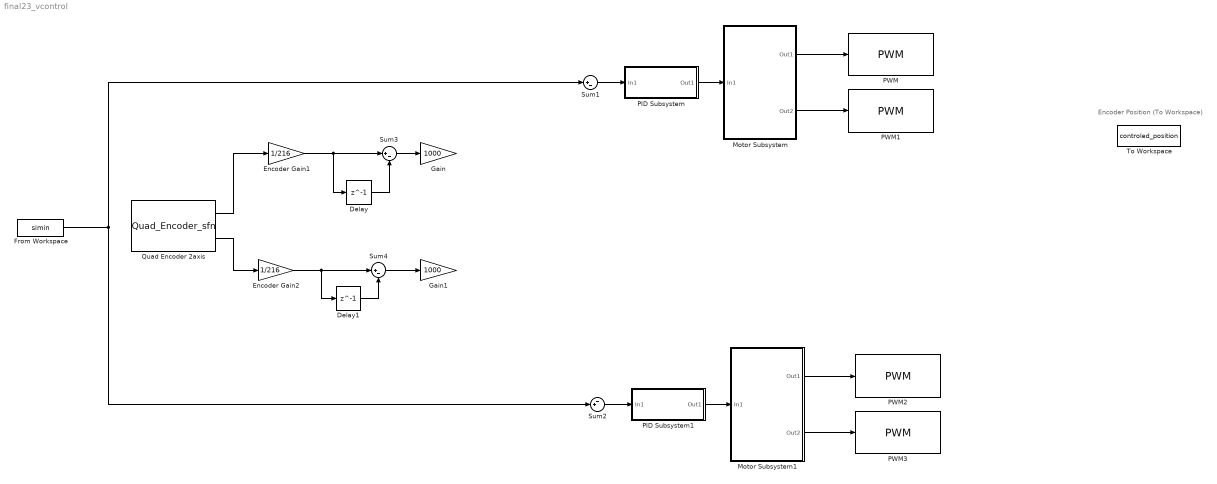
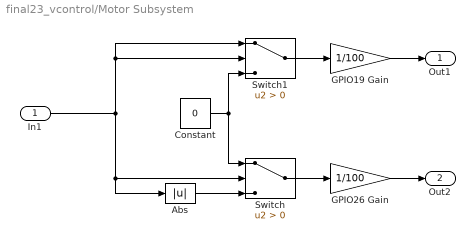
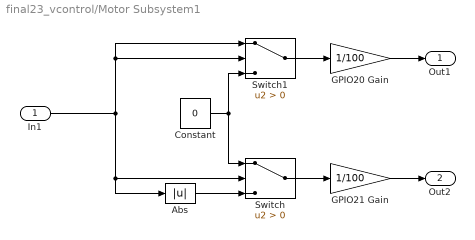
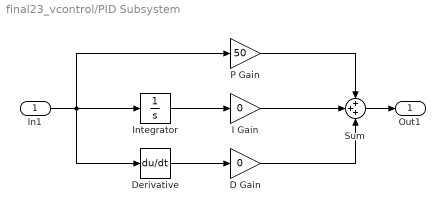
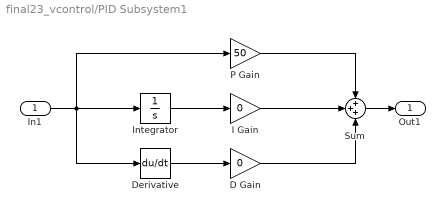
/*
 * final23_vcontrol.c
 *
 * Academic License - for use in teaching, academic research, and meeting
 * course requirements at degree granting institutions only.  Not for
 * government, commercial, or other organizational use.
 *
 * Code generation for model "final23_vcontrol".
 *
 * Model version              : 1.17
 * Simulink Coder version : 9.5 (R2021a) 14-Nov-2020
 * C source code generated on : Mon Dec  4 17:46:37 2023
 *
 * Target selection: ert.tlc
 * Note: GRT includes extra infrastructure and instrumentation for prototyping
 * Embedded hardware selection: ARM Compatible->ARM Cortex
 * Code generation objectives: Unspecified
 * Validation result: Not run
 */

#include "final23_vcontrol.h"
#include "final23_vcontrol_private.h"

/* Block signals (default storage) */
B_final23_vcontrol_T final23_vcontrol_B;

/* Continuous states */
X_final23_vcontrol_T final23_vcontrol_X;

/* Block states (default storage) */
DW_final23_vcontrol_T final23_vcontrol_DW;

/* Real-time model */
static RT_MODEL_final23_vcontrol_T final23_vcontrol_M_;
RT_MODEL_final23_vcontrol_T *const final23_vcontrol_M = &final23_vcontrol_M_;
real_T sMultiWord2Double(const uint64_T u1[], int32_T n1, int32_T e1)
{
  real_T y;
  uint64_T cb;
  uint64_T u1i;
  int32_T exp_0;
  int32_T i;
  y = 0.0;
  exp_0 = e1;
  if ((u1[n1 - 1] & 9223372036854775808ULL) != 0ULL) {
    cb = 1ULL;
    for (i = 0; i < n1; i++) {
      u1i = ~u1[i];
      cb += u1i;
      y -= ldexp((real_T)cb, exp_0);
      cb = (uint64_T)(cb < u1i);
      exp_0 += 64;
    }
  } else {
    for (i = 0; i < n1; i++) {
      y += ldexp((real_T)u1[i], exp_0);
      exp_0 += 64;
    }
  }

  return y;
}

void sMultiWordMul(const uint64_T u1[], int32_T n1, const uint64_T u2[], int32_T
                   n2, uint64_T y[], int32_T n)
{
  uint64_T a0;
  uint64_T a1;
  uint64_T b1;
  uint64_T cb;
  uint64_T cb1;
  uint64_T cb2;
  uint64_T u1i;
  uint64_T w01;
  uint64_T w10;
  uint64_T yk;
  int32_T i;
  int32_T j;
  int32_T k;
  int32_T ni;
  boolean_T isNegative1;
  boolean_T isNegative2;
  isNegative1 = ((u1[n1 - 1] & 9223372036854775808ULL) != 0ULL);
  isNegative2 = ((u2[n2 - 1] & 9223372036854775808ULL) != 0ULL);
  cb1 = 1ULL;

  /* Initialize output to zero */
  for (k = 0; k < n; k++) {
    y[k] = 0ULL;
  }

  for (i = 0; i < n1; i++) {
    cb = 0ULL;
    u1i = u1[i];
    if (isNegative1) {
      u1i = ~u1i + cb1;
      cb1 = (uint64_T)(u1i < cb1);
    }

    a1 = u1i >> 32U;
    a0 = u1i & 4294967295ULL;
    cb2 = 1ULL;
    ni = n - i;
    ni = n2 <= ni ? n2 : ni;
    k = i;
    for (j = 0; j < ni; j++) {
      u1i = u2[j];
      if (isNegative2) {
        u1i = ~u1i + cb2;
        cb2 = (uint64_T)(u1i < cb2);
      }

      b1 = u1i >> 32U;
      u1i &= 4294967295ULL;
      w10 = a1 * u1i;
      w01 = a0 * b1;
      yk = y[k] + cb;
      cb = (uint64_T)(yk < cb);
      u1i *= a0;
      yk += u1i;
      cb += (yk < u1i);
      u1i = w10 << 32U;
      yk += u1i;
      cb += (yk < u1i);
      u1i = w01 << 32U;
      yk += u1i;
      cb += (yk < u1i);
      y[k] = yk;
      cb += w10 >> 32U;
      cb += w01 >> 32U;
      cb += a1 * b1;
      k++;
    }

    if (k < n) {
      y[k] = cb;
    }
  }

  /* Apply sign */
  if (isNegative1 != isNegative2) {
    cb = 1ULL;
    for (k = 0; k < n; k++) {
      yk = ~y[k] + cb;
      y[k] = yk;
      cb = (uint64_T)(yk < cb);
    }
  }
}

/*
 * This function updates continuous states using the ODE3 fixed-step
 * solver algorithm
 */
static void rt_ertODEUpdateContinuousStates(RTWSolverInfo *si )
{
  /* Solver Matrices */
  static const real_T rt_ODE3_A[3] = {
    1.0/2.0, 3.0/4.0, 1.0
  };

  static const real_T rt_ODE3_B[3][3] = {
    { 1.0/2.0, 0.0, 0.0 },

    { 0.0, 3.0/4.0, 0.0 },

    { 2.0/9.0, 1.0/3.0, 4.0/9.0 }
  };

  time_T t = rtsiGetT(si);
  time_T tnew = rtsiGetSolverStopTime(si);
  time_T h = rtsiGetStepSize(si);
  real_T *x = rtsiGetContStates(si);
  ODE3_IntgData *id = (ODE3_IntgData *)rtsiGetSolverData(si);
  real_T *y = id->y;
  real_T *f0 = id->f[0];
  real_T *f1 = id->f[1];
  real_T *f2 = id->f[2];
  real_T hB[3];
  int_T i;
  int_T nXc = 2;
  rtsiSetSimTimeStep(si,MINOR_TIME_STEP);

  /* Save the state values at time t in y, we'll use x as ynew. */
  (void) memcpy(y, x,
                (uint_T)nXc*sizeof(real_T));

  /* Assumes that rtsiSetT and ModelOutputs are up-to-date */
  /* f0 = f(t,y) */
  rtsiSetdX(si, f0);
  final23_vcontrol_derivatives();

  /* f(:,2) = feval(odefile, t + hA(1), y + f*hB(:,1), args(:)(*)); */
  hB[0] = h * rt_ODE3_B[0][0];
  for (i = 0; i < nXc; i++) {
    x[i] = y[i] + (f0[i]*hB[0]);
  }

  rtsiSetT(si, t + h*rt_ODE3_A[0]);
  rtsiSetdX(si, f1);
  final23_vcontrol_step();
  final23_vcontrol_derivatives();

  /* f(:,3) = feval(odefile, t + hA(2), y + f*hB(:,2), args(:)(*)); */
  for (i = 0; i <= 1; i++) {
    hB[i] = h * rt_ODE3_B[1][i];
  }

  for (i = 0; i < nXc; i++) {
    x[i] = y[i] + (f0[i]*hB[0] + f1[i]*hB[1]);
  }

  rtsiSetT(si, t + h*rt_ODE3_A[1]);
  rtsiSetdX(si, f2);
  final23_vcontrol_step();
  final23_vcontrol_derivatives();

  /* tnew = t + hA(3);
     ynew = y + f*hB(:,3); */
  for (i = 0; i <= 2; i++) {
    hB[i] = h * rt_ODE3_B[2][i];
  }

  for (i = 0; i < nXc; i++) {
    x[i] = y[i] + (f0[i]*hB[0] + f1[i]*hB[1] + f2[i]*hB[2]);
  }

  rtsiSetT(si, tnew);
  rtsiSetSimTimeStep(si,MAJOR_TIME_STEP);
}

/*
 * System initialize for atomic system:
 *    synthesized block
 *    synthesized block
 */
void final23_vcon_MovingAverage_Init(DW_MovingAverage_final23_vcon_T *localDW)
{
  g_dsp_private_SlidingWindowAv_T *obj;
  int32_T i;

  /* InitializeConditions for MATLABSystem: '<S3>/Moving Average' */
  obj = localDW->obj.pStatistic;
  if (obj->isInitialized == 1) {
    obj->pCumSum = 0.0;
    for (i = 0; i < 19; i++) {
      obj->pCumSumRev[i] = 0.0;
    }

    obj->pCumRevIndex = 1.0;
  }

  /* End of InitializeConditions for MATLABSystem: '<S3>/Moving Average' */
}

/*
 * Start for atomic system:
 *    synthesized block
 *    synthesized block
 */
void final23_vco_MovingAverage_Start(DW_MovingAverage_final23_vcon_T *localDW)
{
  /* Start for MATLABSystem: '<S3>/Moving Average' */
  localDW->obj.matlabCodegenIsDeleted = true;
  localDW->obj.isInitialized = 0;
  localDW->obj.NumChannels = -1;
  localDW->obj.matlabCodegenIsDeleted = false;
  localDW->objisempty = true;
  localDW->obj.isSetupComplete = false;
  localDW->obj.isInitialized = 1;
  localDW->obj.NumChannels = 1;
  localDW->obj._pobj0.isInitialized = 0;
  localDW->obj.pStatistic = &localDW->obj._pobj0;
  localDW->obj.isSetupComplete = true;
  localDW->obj.TunablePropsChanged = false;
}

/*
 * Output and update for atomic system:
 *    synthesized block
 *    synthesized block
 */
void final23_vcontrol_MovingAverage(real_T rtu_0,
  B_MovingAverage_final23_vcont_T *localB, DW_MovingAverage_final23_vcon_T
  *localDW)
{
  g_dsp_private_SlidingWindowAv_T *obj;
  real_T csum;
  real_T cumRevIndex;
  real_T z;
  int32_T i;

  /* MATLABSystem: '<S3>/Moving Average' */
  if (localDW->obj.TunablePropsChanged) {
    localDW->obj.TunablePropsChanged = false;
  }

  obj = localDW->obj.pStatistic;
  if (obj->isInitialized != 1) {
    obj->isSetupComplete = false;
    obj->isInitialized = 1;
    obj->pCumSum = 0.0;
    for (i = 0; i < 19; i++) {
      obj->pCumSumRev[i] = 0.0;
    }

    obj->pCumRevIndex = 1.0;
    obj->isSetupComplete = true;
    obj->pCumSum = 0.0;
    for (i = 0; i < 19; i++) {
      obj->pCumSumRev[i] = 0.0;
    }

    obj->pCumRevIndex = 1.0;
  }

  cumRevIndex = obj->pCumRevIndex;
  csum = obj->pCumSum;
  for (i = 0; i < 19; i++) {
    localB->csumrev[i] = obj->pCumSumRev[i];
  }

  csum += rtu_0;
  z = localB->csumrev[(int32_T)cumRevIndex - 1] + csum;
  localB->csumrev[(int32_T)cumRevIndex - 1] = rtu_0;
  if (cumRevIndex != 19.0) {
    cumRevIndex++;
  } else {
    cumRevIndex = 1.0;
    csum = 0.0;
    for (i = 17; i >= 0; i--) {
      localB->csumrev[i] += localB->csumrev[i + 1];
    }
  }

  obj->pCumSum = csum;
  for (i = 0; i < 19; i++) {
    obj->pCumSumRev[i] = localB->csumrev[i];
  }

  obj->pCumRevIndex = cumRevIndex;

  /* MATLABSystem: '<S3>/Moving Average' */
  localB->MovingAverage = z / 20.0;
}

/*
 * Termination for atomic system:
 *    synthesized block
 *    synthesized block
 */
void final23_vcon_MovingAverage_Term(DW_MovingAverage_final23_vcon_T *localDW)
{
  g_dsp_private_SlidingWindowAv_T *obj;

  /* Terminate for MATLABSystem: '<S3>/Moving Average' */
  if (!localDW->obj.matlabCodegenIsDeleted) {
    localDW->obj.matlabCodegenIsDeleted = true;
    if ((localDW->obj.isInitialized == 1) && localDW->obj.isSetupComplete) {
      obj = localDW->obj.pStatistic;
      if (obj->isInitialized == 1) {
        obj->isInitialized = 2;
      }

      localDW->obj.NumChannels = -1;
    }
  }

  /* End of Terminate for MATLABSystem: '<S3>/Moving Average' */
}

/* Model step function */
void final23_vcontrol_step(void)
{
  /* local block i/o variables */
  real_T rtb_CastToDouble;
  real_T rtb_CastToDouble1;
  if (rtmIsMajorTimeStep(final23_vcontrol_M)) {
    /* set solver stop time */
    if (!(final23_vcontrol_M->Timing.clockTick0+1)) {
      rtsiSetSolverStopTime(&final23_vcontrol_M->solverInfo,
                            ((final23_vcontrol_M->Timing.clockTickH0 + 1) *
        final23_vcontrol_M->Timing.stepSize0 * 4294967296.0));
    } else {
      rtsiSetSolverStopTime(&final23_vcontrol_M->solverInfo,
                            ((final23_vcontrol_M->Timing.clockTick0 + 1) *
        final23_vcontrol_M->Timing.stepSize0 +
        final23_vcontrol_M->Timing.clockTickH0 *
        final23_vcontrol_M->Timing.stepSize0 * 4294967296.0));
    }
  }                                    /* end MajorTimeStep */

  /* Update absolute time of base rate at minor time step */
  if (rtmIsMinorTimeStep(final23_vcontrol_M)) {
    final23_vcontrol_M->Timing.t[0] = rtsiGetT(&final23_vcontrol_M->solverInfo);
  }

  {
    real_T *lastU;
    if (rtmIsMajorTimeStep(final23_vcontrol_M)) {
      /* FromWorkspace: '<Root>/From Workspace' */
      {
        real_T *pDataValues = (real_T *)
          final23_vcontrol_DW.FromWorkspace_PWORK.DataPtr;
        real_T *pTimeValues = (real_T *)
          final23_vcontrol_DW.FromWorkspace_PWORK.TimePtr;
        int_T currTimeIndex = final23_vcontrol_DW.FromWorkspace_IWORK.PrevIndex;
        real_T t = (((final23_vcontrol_M->Timing.clockTick1+
                      final23_vcontrol_M->Timing.clockTickH1* 4294967296.0)) *
                    0.001);

        /* Get index */
        if (t <= pTimeValues[0]) {
          currTimeIndex = 0;
        } else if (t >= pTimeValues[10000]) {
          currTimeIndex = 9999;
        } else {
          if (t < pTimeValues[currTimeIndex]) {
            while (t < pTimeValues[currTimeIndex]) {
              currTimeIndex--;
            }
          } else {
            while (t >= pTimeValues[currTimeIndex + 1]) {
              currTimeIndex++;
            }
          }
        }

        final23_vcontrol_DW.FromWorkspace_IWORK.PrevIndex = currTimeIndex;

        /* Post output */
        {
          real_T t1 = pTimeValues[currTimeIndex];
          real_T t2 = pTimeValues[currTimeIndex + 1];
          if (t1 == t2) {
            if (t < t1) {
              final23_vcontrol_B.FromWorkspace = pDataValues[currTimeIndex];
            } else {
              final23_vcontrol_B.FromWorkspace = pDataValues[currTimeIndex + 1];
            }
          } else {
            real_T f1 = (t2 - t) / (t2 - t1);
            real_T f2 = 1.0 - f1;
            real_T d1;
            real_T d2;
            int_T TimeIndex = currTimeIndex;
            d1 = pDataValues[TimeIndex];
            d2 = pDataValues[TimeIndex + 1];
            final23_vcontrol_B.FromWorkspace = (real_T) rtInterpolate(d1, d2, f1,
              f2);
            pDataValues += 10001;
          }
        }
      }
    }

    /* S-Function (Quad_Encoder_sfn): '<Root>/Quad Encoder 2axis' */
    Quad_Encoder_sfn_Outputs_wrapper(&final23_vcontrol_B.QuadEncoder2axis_o1,
      &final23_vcontrol_B.QuadEncoder2axis_o2,
      &final23_vcontrol_DW.QuadEncoder2axis_DSTATE,
      &final23_vcontrol_P.QuadEncoder2axis_P1, 1,
      &final23_vcontrol_P.QuadEncoder2axis_P2, 1,
      &final23_vcontrol_P.QuadEncoder2axis_P3, 1,
      &final23_vcontrol_P.QuadEncoder2axis_P4, 1,
      &final23_vcontrol_P.QuadEncoder2axis_P5, 1,
      &final23_vcontrol_P.QuadEncoder2axis_P6, 1);

    /* Gain: '<S3>/Encoder Gain1' */
    final23_vcontrol_B.EncoderGain1 = (int64_T)
      final23_vcontrol_P.EncoderGain1_Gain *
      final23_vcontrol_B.QuadEncoder2axis_o1;
    if (rtmIsMajorTimeStep(final23_vcontrol_M)) {
      /* Delay: '<S3>/Delay' */
      final23_vcontrol_B.Delay = final23_vcontrol_DW.Delay_DSTATE;
    }

    /* Gain: '<S3>/Gain' incorporates:
     *  Delay: '<S3>/Delay'
     *  Gain: '<S3>/Encoder Gain1'
     *  Sum: '<S3>/Sum3'
     */
    final23_vcontrol_B.u = (uint64_T)final23_vcontrol_P.Gain_Gain;
    final23_vcontrol_B.u1 = (uint64_T)(final23_vcontrol_B.EncoderGain1 -
      final23_vcontrol_B.Delay);
    sMultiWordMul(&final23_vcontrol_B.u, 1, &final23_vcontrol_B.u1, 1,
                  &final23_vcontrol_B.r.chunks[0U], 2);

    /* DataTypeConversion: '<S3>/Cast To Double' */
    rtb_CastToDouble = sMultiWord2Double(&final23_vcontrol_B.r.chunks[0U], 2, 0)
      * 4.0389678347315804E-28;
    final23_vcontrol_MovingAverage(rtb_CastToDouble,
      &final23_vcontrol_B.MovingAverage, &final23_vcontrol_DW.MovingAverage);

    /* Sum: '<Root>/Sum1' */
    final23_vcontrol_B.Sum1 = final23_vcontrol_B.FromWorkspace -
      final23_vcontrol_B.MovingAverage.MovingAverage;

    /* Derivative: '<S5>/Derivative' incorporates:
     *  Derivative: '<S6>/Derivative'
     */
    final23_vcontrol_B.Sum_d = final23_vcontrol_M->Timing.t[0];
    if ((final23_vcontrol_DW.TimeStampA >= final23_vcontrol_B.Sum_d) &&
        (final23_vcontrol_DW.TimeStampB >= final23_vcontrol_B.Sum_d)) {
      final23_vcontrol_B.Switch = 0.0;
    } else {
      final23_vcontrol_B.Switch = final23_vcontrol_DW.TimeStampA;
      lastU = &final23_vcontrol_DW.LastUAtTimeA;
      if (final23_vcontrol_DW.TimeStampA < final23_vcontrol_DW.TimeStampB) {
        if (final23_vcontrol_DW.TimeStampB < final23_vcontrol_B.Sum_d) {
          final23_vcontrol_B.Switch = final23_vcontrol_DW.TimeStampB;
          lastU = &final23_vcontrol_DW.LastUAtTimeB;
        }
      } else if (final23_vcontrol_DW.TimeStampA >= final23_vcontrol_B.Sum_d) {
        final23_vcontrol_B.Switch = final23_vcontrol_DW.TimeStampB;
        lastU = &final23_vcontrol_DW.LastUAtTimeB;
      }

      final23_vcontrol_B.Switch = (final23_vcontrol_B.Sum1 - *lastU) /
        (final23_vcontrol_B.Sum_d - final23_vcontrol_B.Switch);
    }

    /* End of Derivative: '<S5>/Derivative' */

    /* Sum: '<S5>/Sum' incorporates:
     *  Gain: '<S5>/D Gain'
     *  Gain: '<S5>/I Gain'
     *  Gain: '<S5>/P Gain'
     *  Integrator: '<S5>/Integrator'
     */
    final23_vcontrol_B.Sum = (final23_vcontrol_P.PGain_Gain *
      final23_vcontrol_B.Sum1 + final23_vcontrol_P.IGain_Gain *
      final23_vcontrol_X.Integrator_CSTATE) + final23_vcontrol_P.DGain_Gain *
      final23_vcontrol_B.Switch;

    /* Switch: '<S1>/Switch1' incorporates:
     *  Constant: '<S1>/Constant'
     */
    if (final23_vcontrol_B.Sum > final23_vcontrol_P.Switch1_Threshold) {
      final23_vcontrol_B.Switch = final23_vcontrol_B.Sum;
    } else {
      final23_vcontrol_B.Switch = final23_vcontrol_P.Constant_Value;
    }

    /* End of Switch: '<S1>/Switch1' */

    /* Gain: '<S1>/GPIO19 Gain' */
    final23_vcontrol_B.Switch *= final23_vcontrol_P.GPIO19Gain_Gain;

    /* MATLABSystem: '<Root>/PWM' */
    if (!(final23_vcontrol_B.Switch < 1.0)) {
      final23_vcontrol_B.Switch = 1.0;
    }

    if (!(final23_vcontrol_B.Switch > 0.0)) {
      final23_vcontrol_B.Switch = 0.0;
    }

    EXT_PWMBlock_setDutyCycle(final23_vcontrol_DW.obj_g.PinNumber,
      final23_vcontrol_B.Switch);

    /* End of MATLABSystem: '<Root>/PWM' */

    /* Switch: '<S1>/Switch' incorporates:
     *  Abs: '<S1>/Abs'
     *  Constant: '<S1>/Constant'
     */
    if (final23_vcontrol_B.Sum > final23_vcontrol_P.Switch_Threshold) {
      final23_vcontrol_B.Sum = final23_vcontrol_P.Constant_Value;
    } else {
      final23_vcontrol_B.Sum = fabs(final23_vcontrol_B.Sum);
    }

    /* End of Switch: '<S1>/Switch' */

    /* Gain: '<S1>/GPIO26 Gain' */
    final23_vcontrol_B.Switch = final23_vcontrol_P.GPIO26Gain_Gain *
      final23_vcontrol_B.Sum;

    /* MATLABSystem: '<Root>/PWM1' */
    if (!(final23_vcontrol_B.Switch < 1.0)) {
      final23_vcontrol_B.Switch = 1.0;
    }

    if (!(final23_vcontrol_B.Switch > 0.0)) {
      final23_vcontrol_B.Switch = 0.0;
    }

    EXT_PWMBlock_setDutyCycle(final23_vcontrol_DW.obj_e.PinNumber,
      final23_vcontrol_B.Switch);

    /* End of MATLABSystem: '<Root>/PWM1' */
    if (rtmIsMajorTimeStep(final23_vcontrol_M)) {
      /* Delay: '<S4>/Delay1' */
      final23_vcontrol_B.Delay1 = final23_vcontrol_DW.Delay1_DSTATE;
    }

    /* Gain: '<S4>/Encoder Gain2' */
    final23_vcontrol_B.EncoderGain2 = (int64_T)
      final23_vcontrol_P.EncoderGain2_Gain *
      final23_vcontrol_B.QuadEncoder2axis_o2;

    /* Gain: '<S4>/Gain1' incorporates:
     *  Delay: '<S4>/Delay1'
     *  Gain: '<S4>/Encoder Gain2'
     *  Sum: '<S4>/Sum4'
     */
    final23_vcontrol_B.u = (uint64_T)final23_vcontrol_P.Gain1_Gain;
    final23_vcontrol_B.u1 = (uint64_T)(final23_vcontrol_B.EncoderGain2 -
      final23_vcontrol_B.Delay1);
    sMultiWordMul(&final23_vcontrol_B.u, 1, &final23_vcontrol_B.u1, 1,
                  &final23_vcontrol_B.r1.chunks[0U], 2);

    /* DataTypeConversion: '<S4>/Cast To Double1' */
    rtb_CastToDouble1 = sMultiWord2Double(&final23_vcontrol_B.r1.chunks[0U], 2,
      0) * 4.0389678347315804E-28;
    final23_vcontrol_MovingAverage(rtb_CastToDouble1,
      &final23_vcontrol_B.MovingAverage1, &final23_vcontrol_DW.MovingAverage1);
    if (rtmIsMajorTimeStep(final23_vcontrol_M)) {
    }

    /* Sum: '<Root>/Sum2' */
    final23_vcontrol_B.Sum2 = final23_vcontrol_B.FromWorkspace -
      final23_vcontrol_B.MovingAverage1.MovingAverage;

    /* Derivative: '<S6>/Derivative' */
    if ((final23_vcontrol_DW.TimeStampA_a >= final23_vcontrol_B.Sum_d) &&
        (final23_vcontrol_DW.TimeStampB_o >= final23_vcontrol_B.Sum_d)) {
      final23_vcontrol_B.Switch = 0.0;
    } else {
      final23_vcontrol_B.Switch = final23_vcontrol_DW.TimeStampA_a;
      lastU = &final23_vcontrol_DW.LastUAtTimeA_i;
      if (final23_vcontrol_DW.TimeStampA_a < final23_vcontrol_DW.TimeStampB_o) {
        if (final23_vcontrol_DW.TimeStampB_o < final23_vcontrol_B.Sum_d) {
          final23_vcontrol_B.Switch = final23_vcontrol_DW.TimeStampB_o;
          lastU = &final23_vcontrol_DW.LastUAtTimeB_m;
        }
      } else if (final23_vcontrol_DW.TimeStampA_a >= final23_vcontrol_B.Sum_d) {
        final23_vcontrol_B.Switch = final23_vcontrol_DW.TimeStampB_o;
        lastU = &final23_vcontrol_DW.LastUAtTimeB_m;
      }

      final23_vcontrol_B.Switch = (final23_vcontrol_B.Sum2 - *lastU) /
        (final23_vcontrol_B.Sum_d - final23_vcontrol_B.Switch);
    }

    /* Sum: '<S6>/Sum' incorporates:
     *  Gain: '<S6>/D Gain'
     *  Gain: '<S6>/I Gain'
     *  Gain: '<S6>/P Gain'
     *  Integrator: '<S6>/Integrator'
     */
    final23_vcontrol_B.Sum_d = (final23_vcontrol_P.PGain_Gain_i *
      final23_vcontrol_B.Sum2 + final23_vcontrol_P.IGain_Gain_j *
      final23_vcontrol_X.Integrator_CSTATE_l) + final23_vcontrol_P.DGain_Gain_h *
      final23_vcontrol_B.Switch;

    /* Switch: '<S2>/Switch1' incorporates:
     *  Constant: '<S2>/Constant'
     */
    if (final23_vcontrol_B.Sum_d > final23_vcontrol_P.Switch1_Threshold_c) {
      final23_vcontrol_B.Switch = final23_vcontrol_B.Sum_d;
    } else {
      final23_vcontrol_B.Switch = final23_vcontrol_P.Constant_Value_e;
    }

    /* End of Switch: '<S2>/Switch1' */

    /* Gain: '<S2>/GPIO20 Gain' */
    final23_vcontrol_B.Switch *= final23_vcontrol_P.GPIO20Gain_Gain;

    /* MATLABSystem: '<Root>/PWM2' */
    if (!(final23_vcontrol_B.Switch < 1.0)) {
      final23_vcontrol_B.Switch = 1.0;
    }

    if (!(final23_vcontrol_B.Switch > 0.0)) {
      final23_vcontrol_B.Switch = 0.0;
    }

    EXT_PWMBlock_setDutyCycle(final23_vcontrol_DW.obj_p.PinNumber,
      final23_vcontrol_B.Switch);

    /* End of MATLABSystem: '<Root>/PWM2' */

    /* Switch: '<S2>/Switch' incorporates:
     *  Abs: '<S2>/Abs'
     *  Constant: '<S2>/Constant'
     */
    if (final23_vcontrol_B.Sum_d > final23_vcontrol_P.Switch_Threshold_m) {
      final23_vcontrol_B.Sum_d = final23_vcontrol_P.Constant_Value_e;
    } else {
      final23_vcontrol_B.Sum_d = fabs(final23_vcontrol_B.Sum_d);
    }

    /* End of Switch: '<S2>/Switch' */

    /* Gain: '<S2>/GPIO21 Gain' */
    final23_vcontrol_B.Switch = final23_vcontrol_P.GPIO21Gain_Gain *
      final23_vcontrol_B.Sum_d;

    /* MATLABSystem: '<Root>/PWM3' */
    if (!(final23_vcontrol_B.Switch < 1.0)) {
      final23_vcontrol_B.Switch = 1.0;
    }

    if (!(final23_vcontrol_B.Switch > 0.0)) {
      final23_vcontrol_B.Switch = 0.0;
    }

    EXT_PWMBlock_setDutyCycle(final23_vcontrol_DW.obj.PinNumber,
      final23_vcontrol_B.Switch);

    /* End of MATLABSystem: '<Root>/PWM3' */
    if (rtmIsMajorTimeStep(final23_vcontrol_M)) {
    }
  }

  if (rtmIsMajorTimeStep(final23_vcontrol_M)) {
    real_T *lastU;

    /* Update for S-Function (Quad_Encoder_sfn): '<Root>/Quad Encoder 2axis' */

    /* S-Function "Quad_Encoder_sfn_wrapper" Block: <Root>/Quad Encoder 2axis */
    Quad_Encoder_sfn_Update_wrapper(&final23_vcontrol_B.QuadEncoder2axis_o1,
      &final23_vcontrol_B.QuadEncoder2axis_o2,
      &final23_vcontrol_DW.QuadEncoder2axis_DSTATE,
      &final23_vcontrol_P.QuadEncoder2axis_P1, 1,
      &final23_vcontrol_P.QuadEncoder2axis_P2, 1,
      &final23_vcontrol_P.QuadEncoder2axis_P3, 1,
      &final23_vcontrol_P.QuadEncoder2axis_P4, 1,
      &final23_vcontrol_P.QuadEncoder2axis_P5, 1,
      &final23_vcontrol_P.QuadEncoder2axis_P6, 1);
    if (rtmIsMajorTimeStep(final23_vcontrol_M)) {
      /* Update for Delay: '<S3>/Delay' incorporates:
       *  Gain: '<S3>/Encoder Gain1'
       */
      final23_vcontrol_DW.Delay_DSTATE = final23_vcontrol_B.EncoderGain1;
    }

    /* Update for Derivative: '<S5>/Derivative' */
    if (final23_vcontrol_DW.TimeStampA == (rtInf)) {
      final23_vcontrol_DW.TimeStampA = final23_vcontrol_M->Timing.t[0];
      lastU = &final23_vcontrol_DW.LastUAtTimeA;
    } else if (final23_vcontrol_DW.TimeStampB == (rtInf)) {
      final23_vcontrol_DW.TimeStampB = final23_vcontrol_M->Timing.t[0];
      lastU = &final23_vcontrol_DW.LastUAtTimeB;
    } else if (final23_vcontrol_DW.TimeStampA < final23_vcontrol_DW.TimeStampB)
    {
      final23_vcontrol_DW.TimeStampA = final23_vcontrol_M->Timing.t[0];
      lastU = &final23_vcontrol_DW.LastUAtTimeA;
    } else {
      final23_vcontrol_DW.TimeStampB = final23_vcontrol_M->Timing.t[0];
      lastU = &final23_vcontrol_DW.LastUAtTimeB;
    }

    *lastU = final23_vcontrol_B.Sum1;

    /* End of Update for Derivative: '<S5>/Derivative' */
    if (rtmIsMajorTimeStep(final23_vcontrol_M)) {
      /* Update for Delay: '<S4>/Delay1' incorporates:
       *  Gain: '<S4>/Encoder Gain2'
       */
      final23_vcontrol_DW.Delay1_DSTATE = final23_vcontrol_B.EncoderGain2;
    }

    /* Update for Derivative: '<S6>/Derivative' */
    if (final23_vcontrol_DW.TimeStampA_a == (rtInf)) {
      final23_vcontrol_DW.TimeStampA_a = final23_vcontrol_M->Timing.t[0];
      lastU = &final23_vcontrol_DW.LastUAtTimeA_i;
    } else if (final23_vcontrol_DW.TimeStampB_o == (rtInf)) {
      final23_vcontrol_DW.TimeStampB_o = final23_vcontrol_M->Timing.t[0];
      lastU = &final23_vcontrol_DW.LastUAtTimeB_m;
    } else if (final23_vcontrol_DW.TimeStampA_a <
               final23_vcontrol_DW.TimeStampB_o) {
      final23_vcontrol_DW.TimeStampA_a = final23_vcontrol_M->Timing.t[0];
      lastU = &final23_vcontrol_DW.LastUAtTimeA_i;
    } else {
      final23_vcontrol_DW.TimeStampB_o = final23_vcontrol_M->Timing.t[0];
      lastU = &final23_vcontrol_DW.LastUAtTimeB_m;
    }

    *lastU = final23_vcontrol_B.Sum2;

    /* End of Update for Derivative: '<S6>/Derivative' */

    /* External mode */
    rtExtModeUploadCheckTrigger(2);

    {                                  /* Sample time: [0.0s, 0.0s] */
      rtExtModeUpload(0, (real_T)final23_vcontrol_M->Timing.t[0]);
    }

    if (rtmIsMajorTimeStep(final23_vcontrol_M)) {/* Sample time: [0.001s, 0.0s] */
      rtExtModeUpload(1, (real_T)(((final23_vcontrol_M->Timing.clockTick1+
        final23_vcontrol_M->Timing.clockTickH1* 4294967296.0)) * 0.001));
    }
  }                                    /* end MajorTimeStep */

  if (rtmIsMajorTimeStep(final23_vcontrol_M)) {
    /* signal main to stop simulation */
    {                                  /* Sample time: [0.0s, 0.0s] */
      if ((rtmGetTFinal(final23_vcontrol_M)!=-1) &&
          !((rtmGetTFinal(final23_vcontrol_M)-
             (((final23_vcontrol_M->Timing.clockTick1+
                final23_vcontrol_M->Timing.clockTickH1* 4294967296.0)) * 0.001))
            > (((final23_vcontrol_M->Timing.clockTick1+
                 final23_vcontrol_M->Timing.clockTickH1* 4294967296.0)) * 0.001)
            * (DBL_EPSILON))) {
        rtmSetErrorStatus(final23_vcontrol_M, "Simulation finished");
      }

      if (rtmGetStopRequested(final23_vcontrol_M)) {
        rtmSetErrorStatus(final23_vcontrol_M, "Simulation finished");
      }
    }

    rt_ertODEUpdateContinuousStates(&final23_vcontrol_M->solverInfo);

    /* Update absolute time for base rate */
    /* The "clockTick0" counts the number of times the code of this task has
     * been executed. The absolute time is the multiplication of "clockTick0"
     * and "Timing.stepSize0". Size of "clockTick0" ensures timer will not
     * overflow during the application lifespan selected.
     * Timer of this task consists of two 32 bit unsigned integers.
     * The two integers represent the low bits Timing.clockTick0 and the high bits
     * Timing.clockTickH0. When the low bit overflows to 0, the high bits increment.
     */
    if (!(++final23_vcontrol_M->Timing.clockTick0)) {
      ++final23_vcontrol_M->Timing.clockTickH0;
    }

    final23_vcontrol_M->Timing.t[0] = rtsiGetSolverStopTime
      (&final23_vcontrol_M->solverInfo);

    {
      /* Update absolute timer for sample time: [0.001s, 0.0s] */
      /* The "clockTick1" counts the number of times the code of this task has
       * been executed. The resolution of this integer timer is 0.001, which is the step size
       * of the task. Size of "clockTick1" ensures timer will not overflow during the
       * application lifespan selected.
       * Timer of this task consists of two 32 bit unsigned integers.
       * The two integers represent the low bits Timing.clockTick1 and the high bits
       * Timing.clockTickH1. When the low bit overflows to 0, the high bits increment.
       */
      final23_vcontrol_M->Timing.clockTick1++;
      if (!final23_vcontrol_M->Timing.clockTick1) {
        final23_vcontrol_M->Timing.clockTickH1++;
      }
    }
  }                                    /* end MajorTimeStep */
}
